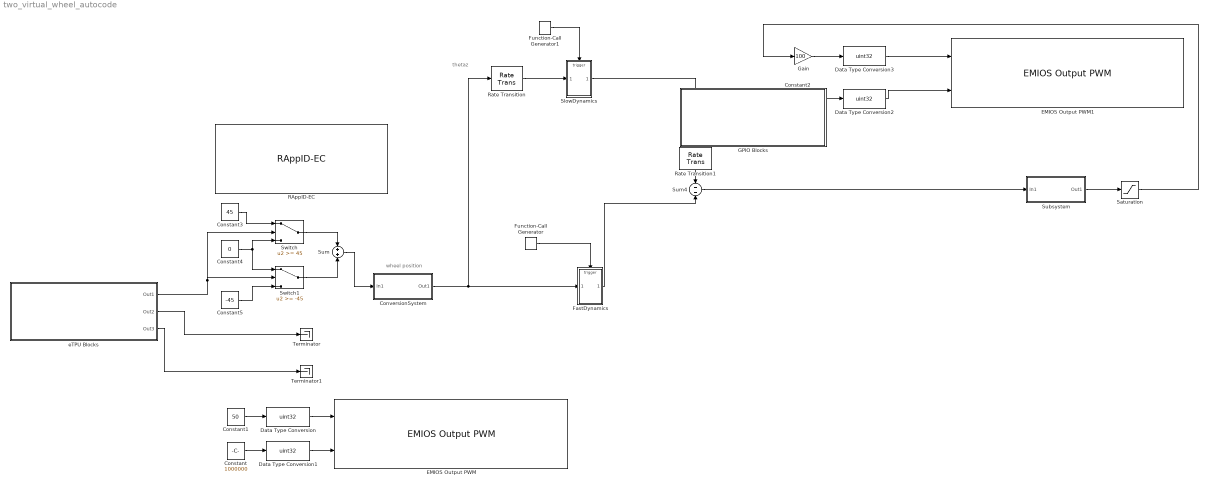
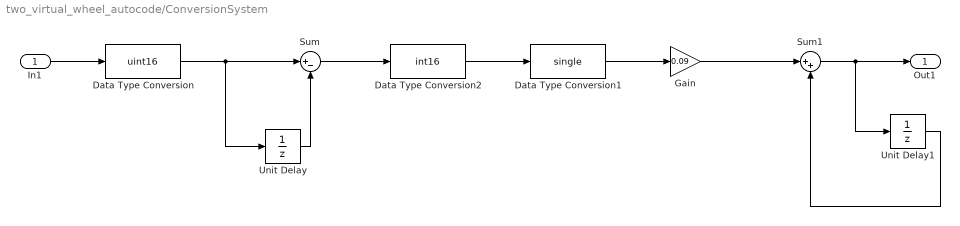
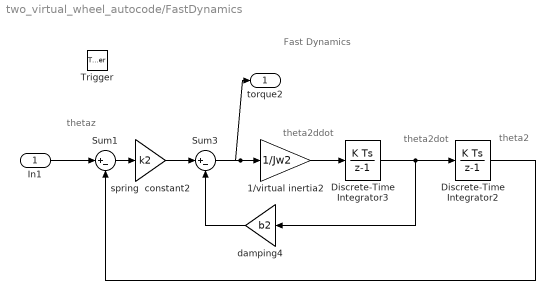
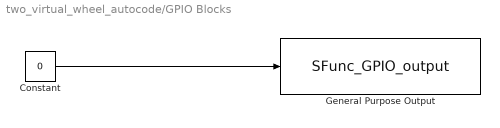
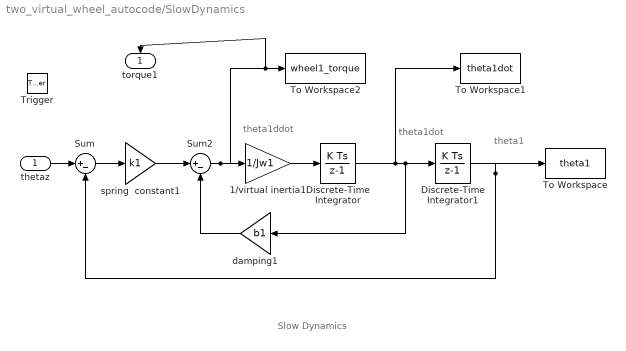
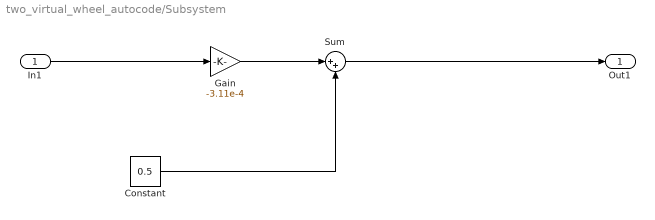
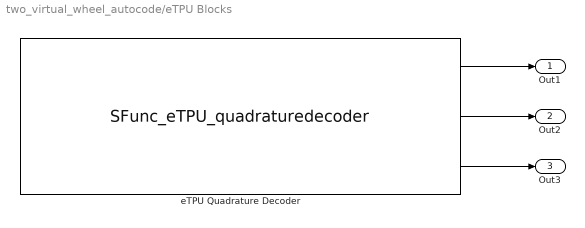
/*
 * File: two_virtual_wheel_autocode.c
 *
 * Code generated for Simulink model 'two_virtual_wheel_autocode'.
 *
 * Model version                  : 1.93
 * Simulink Coder version         : 8.1 (R2011b) 08-Jul-2011
 * TLC version                    : 8.1 (Jul  9 2011)
 * C/C++ source code generated on : Thu Sep 21 16:08:25 2017
 *
 * Target selection: rappid.tlc
 * Embedded hardware selection: 32-bit Generic
 * Emulation hardware selection:
 *    Differs from embedded hardware (MATLAB Host)
 * Code generation objectives: Unspecified
 * Validation result: Not run
 */

#include "two_virtual_wheel_autocode.h"
#include "two_virtual_wheel_autocode_private.h"

/* Block signals (auto storage) */
BlockIO_two_virtual_wheel_autoc two_virtual_wheel_autocode_B;

/* Block states (auto storage) */
D_Work_two_virtual_wheel_autoco two_virtual_wheel_autocod_DWork;

/* Real-time model */
RT_MODEL_two_virtual_wheel_auto two_virtual_wheel_autocode_M_;
RT_MODEL_two_virtual_wheel_auto *const two_virtual_wheel_autocode_M =
  &two_virtual_wheel_autocode_M_;
static void rate_monotonic_scheduler(void);

/*
 * Set which subrates need to run this base step (base rate always runs).
 * This function must be called prior to calling the model step function
 * in order to "remember" which rates need to run this base step.  The
 * buffering of events allows for overlapping preemption.
 */
void two_virtual_wheel_autocode_SetEventsForThisBaseStep(boolean_T *eventFlags)
{
  /* Task runs when its counter is zero, computed via rtmStepTask macro */
  eventFlags[1] = ((boolean_T)rtmStepTask(two_virtual_wheel_autocode_M, 1));
}

/* rate_monotonic_scheduler */
static void rate_monotonic_scheduler(void)
{
  /* To ensure a deterministic data transfer between two rates,
   * data is transferred at the priority of a fast task and the frequency
   * of the slow task.  The following flags indicate when the data transfer
   * happens.  That is, a rate interaction flag is set true when both rates
   * will run, and false otherwise.
   */

  /* tid 0 shares data with slower tid rate: 1 */
  two_virtual_wheel_autocode_M->Timing.RateInteraction.TID0_1 =
    (two_virtual_wheel_autocode_M->Timing.TaskCounters.TID[1] == 0);

  /* Compute which subrates run during the next base time step.  Subrates
   * are an integer multiple of the base rate counter.  Therefore, the subtask
   * counter is reset when it reaches its limit (zero means run).
   */
  (two_virtual_wheel_autocode_M->Timing.TaskCounters.TID[1])++;
  if ((two_virtual_wheel_autocode_M->Timing.TaskCounters.TID[1]) > 9) {/* Sample time: [0.02s, 0.0s] */
    two_virtual_wheel_autocode_M->Timing.TaskCounters.TID[1] = 0;
  }
}

/* Model step function for TID0 */
void two_virtual_wheel_autocode_step0(void) /* Sample time: [0.002s, 0.0s] */
{
  uint16_T rtb_DataTypeConversion;
  real32_T rtb_Sum1;
  real32_T Sum;
  real_T tmp;
  real_T u;

  {                                    /* Sample time: [0.002s, 0.0s] */
    rate_monotonic_scheduler();
  }

  /* S-Function (SFunc_EMIOS_opwfm): '<Root>/EMIOS Output PWM' */

  /*Generate the Output PWM*/
  emios_gen_opwfm_fnc(12, two_virtual_wheel_autocode_P.Constant1_Value,
                      two_virtual_wheel_autocode_P.Constant_Value_h, 128,1);

  /* RateTransition: '<Root>/Rate Transition1' */
  if (two_virtual_wheel_autocode_M->Timing.RateInteraction.TID0_1) {
    two_virtual_wheel_autocode_B.RateTransition1 =
      two_virtual_wheel_autocod_DWork.RateTransition1_Buffer0;
  }

  /* End of RateTransition: '<Root>/Rate Transition1' */

  /* S-Function (SFunc_eTPU_quadraturedecoder): '<S7>/eTPU Quadrature Decoder' */
  {
    two_virtual_wheel_autocode_B.eTPUQuadratureDecoder_o1 = (int32_t)
      ((fs_etpu_qd_get_pc(3)*4)/4);
    if (fs_etpu_qd_get_period(3)==0) {
      two_virtual_wheel_autocode_B.eTPUQuadratureDecoder_o2 = 0;
    } else {
      two_virtual_wheel_autocode_B.eTPUQuadratureDecoder_o2 = (int32_t) ((60 *
        3.2E+7)/(fs_etpu_qd_get_period(3) * (4000/4)));/* lines on motor = pcincrements_per_rev/4 */
    }

    two_virtual_wheel_autocode_B.eTPUQuadratureDecoder_o3 = (int8_t)
      fs_etpu_qd_get_direction(3);
  }

  /* Switch: '<Root>/Switch' incorporates:
   *  Constant: '<Root>/Constant3'
   *  Constant: '<Root>/Constant4'
   */
  if (two_virtual_wheel_autocode_B.eTPUQuadratureDecoder_o1 >=
      two_virtual_wheel_autocode_P.Switch_Threshold) {
    u = two_virtual_wheel_autocode_P.Constant3_Value;
  } else {
    u = two_virtual_wheel_autocode_P.Constant4_Value;
  }

  /* End of Switch: '<Root>/Switch' */

  /* Switch: '<Root>/Switch1' incorporates:
   *  Constant: '<Root>/Constant4'
   *  Constant: '<Root>/Constant5'
   */
  if (two_virtual_wheel_autocode_B.eTPUQuadratureDecoder_o1 >=
      two_virtual_wheel_autocode_P.Switch1_Threshold) {
    tmp = two_virtual_wheel_autocode_P.Constant4_Value;
  } else {
    tmp = two_virtual_wheel_autocode_P.Constant5_Value;
  }

  /* End of Switch: '<Root>/Switch1' */

  /* DataTypeConversion: '<S1>/Data Type Conversion' incorporates:
   *  Sum: '<Root>/Sum'
   */
  u = floor(u + tmp);
  if (rtIsNaN(u) || rtIsInf(u)) {
    u = 0.0;
  } else {
    u = fmod(u, 65536.0);
  }

  rtb_DataTypeConversion = (uint16_T)(u < 0.0 ? (uint16_T)(int32_T)(int16_T)
    -(int16_T)(uint16_T)-u : (uint16_T)u);

  /* End of DataTypeConversion: '<S1>/Data Type Conversion' */

  /* Sum: '<S1>/Sum1' incorporates:
   *  DataTypeConversion: '<S1>/Data Type Conversion1'
   *  DataTypeConversion: '<S1>/Data Type Conversion2'
   *  Gain: '<S1>/Gain'
   *  Sum: '<S1>/Sum'
   *  UnitDelay: '<S1>/Unit Delay'
   *  UnitDelay: '<S1>/Unit Delay1'
   */
  rtb_Sum1 = (real32_T)(int16_T)(uint16_T)(rtb_DataTypeConversion -
    two_virtual_wheel_autocod_DWork.UnitDelay_DSTATE) *
    two_virtual_wheel_autocode_P.Gain_Gain_m +
    two_virtual_wheel_autocod_DWork.UnitDelay1_DSTATE;

  /* S-Function (fcncallgen): '<Root>/Function-Call Generator' incorporates:
   *  SubSystem: '<Root>/FastDynamics'
   */
  two_virtual_wheel_autocod_DWork.FastDynamics_ELAPS_T =
    two_virtual_wheel_autocode_M->Timing.clockTick0 -
    two_virtual_wheel_autocod_DWork.FastDynamics_PREV_T;
  two_virtual_wheel_autocod_DWork.FastDynamics_PREV_T =
    two_virtual_wheel_autocode_M->Timing.clockTick0;

  /* Sum: '<S2>/Sum3' incorporates:
   *  DiscreteIntegrator: '<S2>/Discrete-Time Integrator2'
   *  DiscreteIntegrator: '<S2>/Discrete-Time Integrator3'
   *  Gain: '<S2>/damping4'
   *  Gain: '<S2>/spring  constant2'
   *  Sum: '<S2>/Sum1'
   */
  Sum = (rtb_Sum1 -
         two_virtual_wheel_autocod_DWork.DiscreteTimeIntegrator2_DSTATE) *
    two_virtual_wheel_autocode_P.springconstant2_Gain -
    two_virtual_wheel_autocode_P.damping4_Gain *
    two_virtual_wheel_autocod_DWork.DiscreteTimeIntegrator3_DSTATE;

  /* Update for DiscreteIntegrator: '<S2>/Discrete-Time Integrator2' incorporates:
   *  DiscreteIntegrator: '<S2>/Discrete-Time Integrator3'
   */
  two_virtual_wheel_autocod_DWork.DiscreteTimeIntegrator2_DSTATE = (real32_T)
    ((real_T)two_virtual_wheel_autocode_P.DiscreteTimeIntegrator2_gainval *
     (real_T)two_virtual_wheel_autocod_DWork.FastDynamics_ELAPS_T)
    * two_virtual_wheel_autocod_DWork.DiscreteTimeIntegrator3_DSTATE +
    two_virtual_wheel_autocod_DWork.DiscreteTimeIntegrator2_DSTATE;

  /* Update for DiscreteIntegrator: '<S2>/Discrete-Time Integrator3' incorporates:
   *  Gain: '<S2>/1//virtual inertia2'
   */
  two_virtual_wheel_autocod_DWork.DiscreteTimeIntegrator3_DSTATE = (real32_T)
    ((real_T)two_virtual_wheel_autocode_P.DiscreteTimeIntegrator3_gainval *
     (real_T)two_virtual_wheel_autocod_DWork.FastDynamics_ELAPS_T)
    * (two_virtual_wheel_autocode_P.virtualinertia2_Gain * Sum) +
    two_virtual_wheel_autocod_DWork.DiscreteTimeIntegrator3_DSTATE;

  /* Sum: '<S6>/Sum' incorporates:
   *  Constant: '<S6>/Constant'
   *  Gain: '<S6>/Gain'
   *  Sum: '<Root>/Sum4'
   */
  u = (real_T)(((0.0F - two_virtual_wheel_autocode_B.RateTransition1) - Sum) *
               two_virtual_wheel_autocode_P.Gain_Gain_a) +
    two_virtual_wheel_autocode_P.Constant_Value;

  /* DataTypeConversion: '<Root>/Data Type Conversion3' incorporates:
   *  Gain: '<Root>/Gain'
   *  Saturate: '<Root>/Saturation'
   */
  u = floor((u >= two_virtual_wheel_autocode_P.Saturation_UpperSat ?
             two_virtual_wheel_autocode_P.Saturation_UpperSat : u <=
             two_virtual_wheel_autocode_P.Saturation_LowerSat ?
             two_virtual_wheel_autocode_P.Saturation_LowerSat : u) *
            two_virtual_wheel_autocode_P.Gain_Gain);
  if (rtIsNaN(u) || rtIsInf(u)) {
    u = 0.0;
  } else {
    u = fmod(u, 4.294967296E+9);
  }

  two_virtual_wheel_autocode_B.DataTypeConversion3 = u < 0.0 ? (uint32_T)
    -(int32_T)(uint32_T)-u : (uint32_T)u;

  /* End of DataTypeConversion: '<Root>/Data Type Conversion3' */

  /* DataTypeConversion: '<Root>/Data Type Conversion2' incorporates:
   *  Constant: '<Root>/Constant2'
   */
  u = floor(two_virtual_wheel_autocode_P.Constant2_Value);
  if (rtIsNaN(u) || rtIsInf(u)) {
    u = 0.0;
  } else {
    u = fmod(u, 4.294967296E+9);
  }

  two_virtual_wheel_autocode_B.DataTypeConversion2 = u < 0.0 ? (uint32_T)
    -(int32_T)(uint32_T)-u : (uint32_T)u;

  /* End of DataTypeConversion: '<Root>/Data Type Conversion2' */

  /* S-Function (SFunc_EMIOS_opwfm): '<Root>/EMIOS Output PWM1' */

  /*Generate the Output PWM*/
  emios_gen_opwfm_fnc(0, two_virtual_wheel_autocode_B.DataTypeConversion3,
                      two_virtual_wheel_autocode_B.DataTypeConversion2, 128,1);

  /* RateTransition: '<Root>/Rate Transition' */
  if (two_virtual_wheel_autocode_M->Timing.RateInteraction.TID0_1) {
    two_virtual_wheel_autocode_B.RateTransition = rtb_Sum1;
  }

  /* End of RateTransition: '<Root>/Rate Transition' */

  /* S-Function (SFunc_GPIO_output): '<S3>/General Purpose Output' */

  /* Pin Data Output Signal */
  gpo_writedata_fnc(205, two_virtual_wheel_autocode_P.Constant_Value_hq);/* GPIO Pin Data Output Registers */

  /* Update for UnitDelay: '<S1>/Unit Delay' */
  two_virtual_wheel_autocod_DWork.UnitDelay_DSTATE = rtb_DataTypeConversion;

  /* Update for UnitDelay: '<S1>/Unit Delay1' */
  two_virtual_wheel_autocod_DWork.UnitDelay1_DSTATE = rtb_Sum1;

  /* Update absolute time */
  /* The "clockTick0" counts the number of times the code of this task has
   * been executed. The resolution of this integer timer is 0.002, which is the step size
   * of the task. Size of "clockTick0" ensures timer will not overflow during the
   * application lifespan selected.
   */
  two_virtual_wheel_autocode_M->Timing.clockTick0++;
}

/* Model step function for TID1 */
void two_virtual_wheel_autocode_step1(void) /* Sample time: [0.02s, 0.0s] */
{
  real32_T Sum;

  /* S-Function (fcncallgen): '<Root>/Function-Call Generator1' incorporates:
   *  SubSystem: '<Root>/SlowDynamics'
   */
  two_virtual_wheel_autocod_DWork.SlowDynamics_ELAPS_T =
    two_virtual_wheel_autocode_M->Timing.clockTick1 -
    two_virtual_wheel_autocod_DWork.SlowDynamics_PREV_T;
  two_virtual_wheel_autocod_DWork.SlowDynamics_PREV_T =
    two_virtual_wheel_autocode_M->Timing.clockTick1;

  /* Sum: '<S5>/Sum2' incorporates:
   *  DiscreteIntegrator: '<S5>/Discrete-Time Integrator'
   *  DiscreteIntegrator: '<S5>/Discrete-Time Integrator1'
   *  Gain: '<S5>/damping1'
   *  Gain: '<S5>/spring  constant1'
   *  Sum: '<S5>/Sum'
   */
  Sum = (two_virtual_wheel_autocode_B.RateTransition -
         two_virtual_wheel_autocod_DWork.DiscreteTimeIntegrator1_DSTATE) *
    two_virtual_wheel_autocode_P.springconstant1_Gain -
    two_virtual_wheel_autocode_P.damping1_Gain *
    two_virtual_wheel_autocod_DWork.DiscreteTimeIntegrator_DSTATE;

  /* Update for DiscreteIntegrator: '<S5>/Discrete-Time Integrator1' incorporates:
   *  DiscreteIntegrator: '<S5>/Discrete-Time Integrator'
   */
  two_virtual_wheel_autocod_DWork.DiscreteTimeIntegrator1_DSTATE = (real32_T)
    ((real_T)two_virtual_wheel_autocode_P.DiscreteTimeIntegrator1_gainval *
     (real_T)two_virtual_wheel_autocod_DWork.SlowDynamics_ELAPS_T)
    * two_virtual_wheel_autocod_DWork.DiscreteTimeIntegrator_DSTATE +
    two_virtual_wheel_autocod_DWork.DiscreteTimeIntegrator1_DSTATE;

  /* Update for DiscreteIntegrator: '<S5>/Discrete-Time Integrator' incorporates:
   *  Gain: '<S5>/1//virtual inertia1'
   */
  two_virtual_wheel_autocod_DWork.DiscreteTimeIntegrator_DSTATE = (real32_T)
    ((real_T)two_virtual_wheel_autocode_P.DiscreteTimeIntegrator_gainval *
     (real_T)two_virtual_wheel_autocod_DWork.SlowDynamics_ELAPS_T)
    * (two_virtual_wheel_autocode_P.virtualinertia1_Gain * Sum) +
    two_virtual_wheel_autocod_DWork.DiscreteTimeIntegrator_DSTATE;

  /* Update for RateTransition: '<Root>/Rate Transition1' */
  two_virtual_wheel_autocod_DWork.RateTransition1_Buffer0 = Sum;

  /* Update absolute time */
  /* The "clockTick1" counts the number of times the code of this task has
   * been executed. The resolution of this integer timer is 0.02, which is the step size
   * of the task. Size of "clockTick1" ensures timer will not overflow during the
   * application lifespan selected.
   */
  two_virtual_wheel_autocode_M->Timing.clockTick1++;
}

void two_virtual_wheel_autocode_step(int_T tid)
{
  switch (tid) {
   case 0 :
    two_virtual_wheel_autocode_step0();
    break;

   case 1 :
    two_virtual_wheel_autocode_step1();
    break;

   default :
    break;
  }
}
